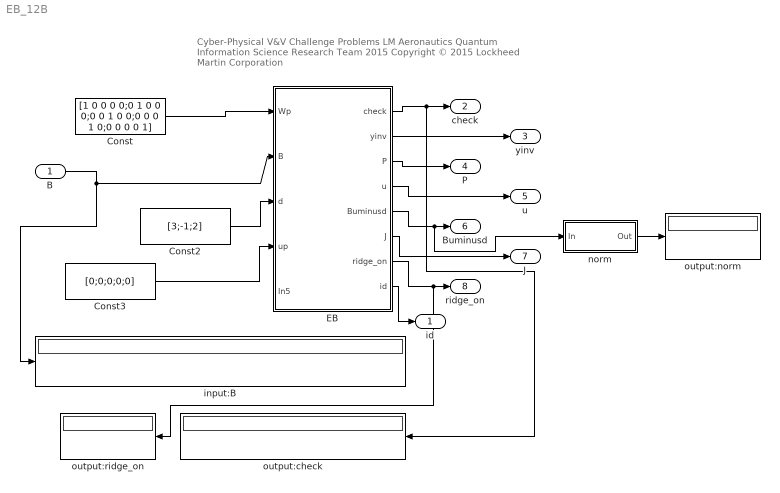
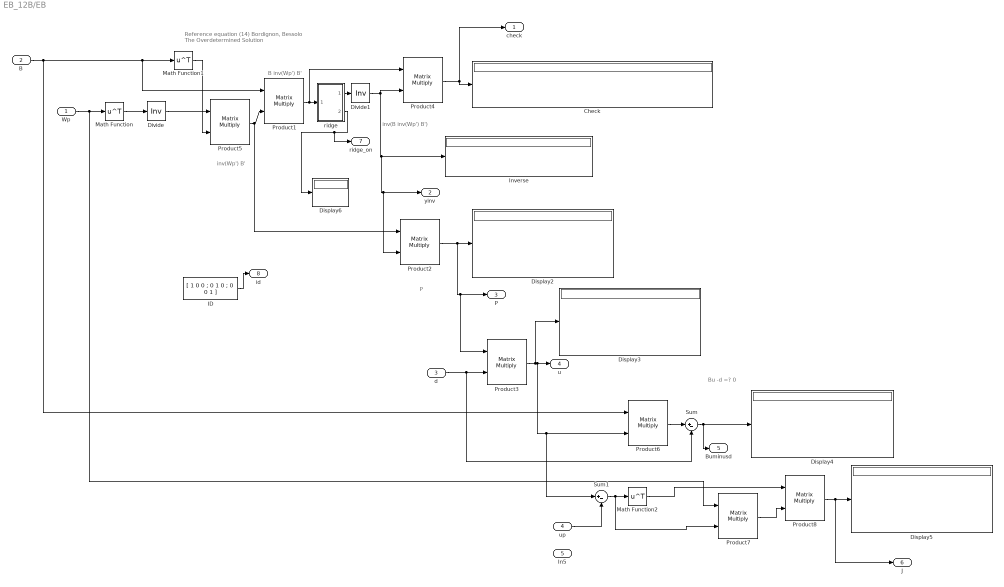
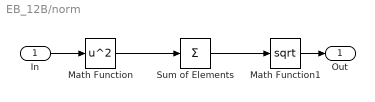
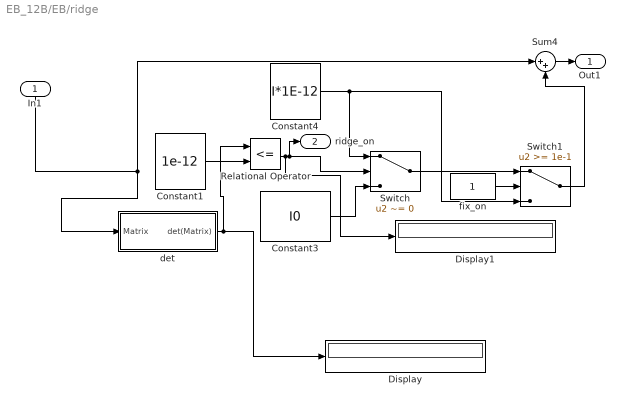
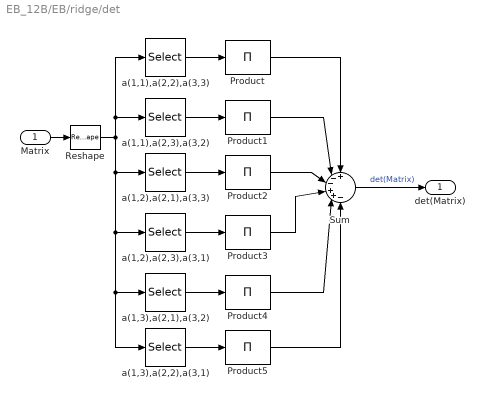
/*
 * Academic License - for use in teaching, academic research, and meeting
 * course requirements at degree granting institutions only.  Not for
 * government, commercial, or other organizational use.
 *
 * File: EB_12B.c
 *
 * Code generated for Simulink model 'EB_12B'.
 *
 * Model version                  : 7.0
 * Simulink Coder version         : 9.6 (R2021b) 14-May-2021
 * C/C++ source code generated on : Mon Apr  4 00:48:20 2022
 *
 * Target selection: ert.tlc
 * Embedded hardware selection: 32-bit Generic
 * Code generation objectives: Unspecified
 * Validation result: Not run
 */

#include "EB_12B.h"
#include "EB_12B_private.h"

void rt_invd3x3_snf(const real_T u[9], real_T y[9])
{
  real_T x[9];
  real_T absx11;
  real_T absx21;
  real_T absx31;
  int32_T itmp;
  int32_T p1;
  int32_T p2;
  int32_T p3;
  memcpy(&x[0], &u[0], 9U * sizeof(real_T));
  p1 = 1;
  p2 = 3;
  p3 = 6;
  absx11 = fabs(u[0]);
  absx21 = fabs(u[1]);
  absx31 = fabs(u[2]);
  if ((absx21 > absx11) && (absx21 > absx31)) {
    p1 = 4;
    p2 = 0;
    x[0] = u[1];
    x[1] = u[0];
    x[3] = u[4];
    x[4] = u[3];
    x[6] = u[7];
    x[7] = u[6];
  } else if (absx31 > absx11) {
    p1 = 7;
    p3 = 0;
    x[2] = x[0];
    x[0] = u[2];
    x[5] = x[3];
    x[3] = u[5];
    x[8] = x[6];
    x[6] = u[8];
  }

  absx11 = x[1] / x[0];
  x[1] = absx11;
  absx21 = x[2] / x[0];
  x[2] = absx21;
  x[4] -= absx11 * x[3];
  x[5] -= absx21 * x[3];
  x[7] -= absx11 * x[6];
  x[8] -= absx21 * x[6];
  if (fabs(x[5]) > fabs(x[4])) {
    itmp = p2;
    p2 = p3;
    p3 = itmp;
    x[1] = absx21;
    x[2] = absx11;
    absx11 = x[4];
    x[4] = x[5];
    x[5] = absx11;
    absx11 = x[7];
    x[7] = x[8];
    x[8] = absx11;
  }

  absx11 = x[5] / x[4];
  x[8] -= absx11 * x[7];
  absx21 = (x[1] * absx11 - x[2]) / x[8];
  absx31 = -(x[7] * absx21 + x[1]) / x[4];
  y[p1 - 1] = ((1.0 - x[3] * absx31) - x[6] * absx21) / x[0];
  y[p1] = absx31;
  y[p1 + 1] = absx21;
  absx21 = -absx11 / x[8];
  absx31 = (1.0 - x[7] * absx21) / x[4];
  y[p2] = -(x[3] * absx31 + x[6] * absx21) / x[0];
  y[p2 + 1] = absx31;
  y[p2 + 2] = absx21;
  absx21 = 1.0 / x[8];
  absx31 = -x[7] * absx21 / x[4];
  y[p3] = -(x[3] * absx31 + x[6] * absx21) / x[0];
  y[p3 + 1] = absx31;
  y[p3 + 2] = absx21;
}

/* Model step function */
void EB_12B_step(RT_MODEL_EB_12B_T *const EB_12B_M, real_T EB_12B_U_B[15],
                 real_T EB_12B_Y_check[9], real_T EB_12B_Y_yinv[9], real_T
                 EB_12B_Y_P[15], real_T EB_12B_Y_u[5], real_T EB_12B_Y_Buminusd
                 [3], real_T *EB_12B_Y_J, boolean_T *EB_12B_Y_ridge_on)
{
  real_T rtb_MathFunction2[15];
  real_T rtb_Product1_f[15];
  real_T rtb_Product7[15];
  real_T rtb_Product1_a[9];
  real_T rtb_RelationalOperator_0;
  int32_T i;
  int32_T i_0;
  int32_T rtb_MathFunction2_tmp;
  int32_T rtb_Product7_tmp;

  /* Product: '<S1>/Product5' incorporates:
   *  Inport: '<Root>/B'
   *  Math: '<S1>/Math Function1'
   *  Product: '<S1>/Divide'
   *  Product: '<S1>/Product7'
   */
  for (i = 0; i < 5; i++) {
    for (i_0 = 0; i_0 < 3; i_0++) {
      rtb_Product7_tmp = 5 * i_0 + i;
      rtb_Product7[rtb_Product7_tmp] = 0.0;
      for (rtb_MathFunction2_tmp = 0; rtb_MathFunction2_tmp < 5;
           rtb_MathFunction2_tmp++) {
        rtb_Product7[rtb_Product7_tmp] += EB_12B_ConstB.Divide[5 *
          rtb_MathFunction2_tmp + i] * EB_12B_U_B[3 * rtb_MathFunction2_tmp +
          i_0];
      }
    }
  }

  /* End of Product: '<S1>/Product5' */

  /* Product: '<S1>/Product1' incorporates:
   *  Inport: '<Root>/B'
   *  Product: '<S1>/Product7'
   */
  for (i = 0; i < 3; i++) {
    for (i_0 = 0; i_0 < 3; i_0++) {
      rtb_MathFunction2_tmp = 3 * i + i_0;
      rtb_Product1_a[rtb_MathFunction2_tmp] = 0.0;
      for (rtb_Product7_tmp = 0; rtb_Product7_tmp < 5; rtb_Product7_tmp++) {
        rtb_Product1_a[rtb_MathFunction2_tmp] += EB_12B_U_B[3 * rtb_Product7_tmp
          + i_0] * rtb_Product7[5 * i + rtb_Product7_tmp];
      }
    }
  }

  memcpy(&rtb_Product1_f[0], &rtb_Product1_a[0], 9U * sizeof(real_T));

  /* End of Product: '<S1>/Product1' */

  /* RelationalOperator: '<S3>/Relational Operator' incorporates:
   *  Constant: '<S3>/Constant1'
   *  Product: '<S4>/Product'
   *  Product: '<S4>/Product1'
   *  Product: '<S4>/Product2'
   *  Product: '<S4>/Product3'
   *  Product: '<S4>/Product4'
   *  Product: '<S4>/Product5'
   *  Sum: '<S4>/Sum'
   */
  *EB_12B_Y_ridge_on = (((((rtb_Product1_f[0] * rtb_Product1_f[4] *
    rtb_Product1_f[8] - rtb_Product1_f[0] * rtb_Product1_f[5] * rtb_Product1_f[7])
    - rtb_Product1_f[1] * rtb_Product1_f[3] * rtb_Product1_f[8]) +
    rtb_Product1_f[2] * rtb_Product1_f[3] * rtb_Product1_f[7]) + rtb_Product1_f
    [1] * rtb_Product1_f[5] * rtb_Product1_f[6]) - rtb_Product1_f[2] *
                        rtb_Product1_f[4] * rtb_Product1_f[6] <= 1.0E-12);

  /* Sum: '<S3>/Sum4' */
  for (i = 0; i < 9; i++) {
    /* Switch: '<S3>/Switch' incorporates:
     *  Constant: '<S3>/Constant4'
     */
    if (*EB_12B_Y_ridge_on) {
      rtb_RelationalOperator_0 = EB_12B_ConstP.Constant4_Value[i];
    } else {
      rtb_RelationalOperator_0 = 0.0;
    }

    /* End of Switch: '<S3>/Switch' */
    rtb_Product1_a[i] = rtb_Product1_f[i] + rtb_RelationalOperator_0;
  }

  /* Product: '<S1>/Divide1' incorporates:
   *  Sum: '<S3>/Sum4'
   */
  rt_invd3x3_snf(rtb_Product1_a, EB_12B_Y_yinv);

  /* Product: '<S1>/Product2' incorporates:
   *  Math: '<S1>/Math Function2'
   *  Product: '<S1>/Divide1'
   *  Product: '<S1>/Product7'
   */
  for (i = 0; i < 3; i++) {
    for (i_0 = 0; i_0 < 5; i_0++) {
      rtb_MathFunction2_tmp = 5 * i + i_0;
      rtb_MathFunction2[rtb_MathFunction2_tmp] = 0.0;
      rtb_MathFunction2[rtb_MathFunction2_tmp] += EB_12B_Y_yinv[3 * i] *
        rtb_Product7[i_0];
      rtb_MathFunction2[rtb_MathFunction2_tmp] += EB_12B_Y_yinv[3 * i + 1] *
        rtb_Product7[i_0 + 5];
      rtb_MathFunction2[rtb_MathFunction2_tmp] += EB_12B_Y_yinv[3 * i + 2] *
        rtb_Product7[i_0 + 10];
    }
  }

  /* End of Product: '<S1>/Product2' */

  /* Outport: '<Root>/P' incorporates:
   *  Math: '<S1>/Math Function2'
   */
  memcpy(&EB_12B_Y_P[0], &rtb_MathFunction2[0], 15U * sizeof(real_T));

  /* Product: '<S1>/Product4' */
  memcpy(&rtb_Product1_a[0], &rtb_Product1_f[0], 9U * sizeof(real_T));

  /* Outport: '<Root>/check' incorporates:
   *  Product: '<S1>/Divide1'
   *  Product: '<S1>/Product4'
   */
  for (i = 0; i < 3; i++) {
    for (i_0 = 0; i_0 < 3; i_0++) {
      /* Product: '<S1>/Product4' */
      rtb_MathFunction2_tmp = 3 * i + i_0;
      EB_12B_Y_check[rtb_MathFunction2_tmp] = 0.0;
      EB_12B_Y_check[rtb_MathFunction2_tmp] += EB_12B_Y_yinv[3 * i] *
        rtb_Product1_a[i_0];
      EB_12B_Y_check[rtb_MathFunction2_tmp] += EB_12B_Y_yinv[3 * i + 1] *
        rtb_Product1_a[i_0 + 3];
      EB_12B_Y_check[rtb_MathFunction2_tmp] += EB_12B_Y_yinv[3 * i + 2] *
        rtb_Product1_a[i_0 + 6];
    }
  }

  /* End of Outport: '<Root>/check' */
  for (i = 0; i < 5; i++) {
    /* Product: '<S1>/Product3' incorporates:
     *  Constant: '<Root>/Const2'
     *  Math: '<S1>/Math Function2'
     */
    EB_12B_Y_u[i] = 0.0;
    EB_12B_Y_u[i] += rtb_MathFunction2[i] * 3.0;
    EB_12B_Y_u[i] += -rtb_MathFunction2[i + 5];
    EB_12B_Y_u[i] += rtb_MathFunction2[i + 10] * 2.0;

    /* Sum: '<S1>/Sum1' incorporates:
     *  Product: '<S1>/Product3'
     */
    rtb_MathFunction2[i] = EB_12B_Y_u[i];
  }

  /* Product: '<S1>/Product7' incorporates:
   *  Constant: '<Root>/Const'
   */
  for (i = 0; i < 5; i++) {
    rtb_Product7[i] = 0.0;
    for (i_0 = 0; i_0 < 5; i_0++) {
      rtb_Product7[i] += EB_12B_ConstP.Const_Value[5 * i_0 + i] *
        rtb_MathFunction2[i_0];
    }
  }

  /* End of Product: '<S1>/Product7' */

  /* Outport: '<Root>/Buminusd' incorporates:
   *  Constant: '<Root>/Const2'
   *  Inport: '<Root>/B'
   *  Product: '<S1>/Product3'
   *  Product: '<S1>/Product6'
   *  Sum: '<S1>/Sum'
   */
  for (i = 0; i < 3; i++) {
    rtb_RelationalOperator_0 = 0.0;
    for (i_0 = 0; i_0 < 5; i_0++) {
      rtb_RelationalOperator_0 += EB_12B_U_B[3 * i_0 + i] * EB_12B_Y_u[i_0];
    }

    EB_12B_Y_Buminusd[i] = rtb_RelationalOperator_0 -
      EB_12B_ConstP.Const2_Value[i];
  }

  /* End of Outport: '<Root>/Buminusd' */

  /* Product: '<S1>/Product8' */
  *EB_12B_Y_J = 0.0;
  for (i = 0; i < 5; i++) {
    *EB_12B_Y_J += rtb_MathFunction2[i] * rtb_Product7[i];
  }

  /* End of Product: '<S1>/Product8' */
  UNUSED_PARAMETER(EB_12B_M);
}
